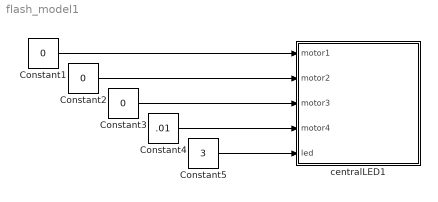
== matlab function flash_model1/centralLED1 ==
function motorController(motor1,motor2,motor3,motor4,led)
%#codegen

persistent flag

coder.cinclude('/Users/aodell/Documents/MATLAB/test_sim/mycfiles/mot.h');
coder.cinclude('/Users/aodell/Documents/MATLAB/test_sim/mycfiles/motorboard.h');
coder.cinclude('/Users/aodell/Documents/MATLAB/test_sim/mycfiles/util.h');
coder.cinclude('/Users/aodell/Documents/MATLAB/test_sim/mycfiles/gpio.h');

switch coder.target

    % Define how the block behaves in simulation mode 
    case 'sfun' 

    % Define how the block behaves in real time execution 
    case 'rtw'
        
        if isempty(flag),
            coder.ceval('mot_Init');
            flag=1;
        end;
        
        motorArr= double([motor1,motor2,motor3,motor4]);
        coder.ceval('mot_Run',motorArr(1),motorArr(2),motorArr(3),motorArr(4));
        coder.ceval('mot_SetLeds',led,led,led,led);
        
end

/*
 * flash_model1.cpp
 *
 * Code generation for model "flash_model1".
 *
 * Model version              : 1.38
 * Simulink Coder version : 8.7 (R2014b) 08-Sep-2014
 * C++ source code generated on : Sat Nov 22 21:27:00 2014
 *
 * Target selection: grt.tlc
 * Note: GRT includes extra infrastructure and instrumentation for prototyping
 * Embedded hardware selection: 32-bit Generic
 * Code generation objectives: Unspecified
 * Validation result: Not run
 */
#include "flash_model1.h"
#include "flash_model1_private.h"
#include "flash_model1_dt.h"

/* Block states (auto storage) */
DW_flash_model1_T flash_model1_DW;

/* Real-time model */
RT_MODEL_flash_model1_T flash_model1_M_;
RT_MODEL_flash_model1_T *const flash_model1_M = &flash_model1_M_;

/* Model step function */
void flash_model1_step(void)
{
  /* MATLAB Function: '<Root>/centralLED1' incorporates:
   *  Constant: '<Root>/Constant1'
   *  Constant: '<Root>/Constant2'
   *  Constant: '<Root>/Constant3'
   *  Constant: '<Root>/Constant4'
   *  Constant: '<Root>/Constant5'
   */
  /* MATLAB Function 'centralLED1': '<S1>:1' */
  if (!flash_model1_DW.flag_not_empty) {
    /* '<S1>:1:19' */
    mot_Init();
    flash_model1_DW.flag_not_empty = true;
  }

  /* '<S1>:1:24' */
  mot_Run(flash_model1_P.Constant1_Value, flash_model1_P.Constant2_Value,
          flash_model1_P.Constant3_Value, flash_model1_P.Constant4_Value);
  mot_SetLeds(flash_model1_P.Constant5_Value, flash_model1_P.Constant5_Value,
              flash_model1_P.Constant5_Value, flash_model1_P.Constant5_Value);

  /* End of MATLAB Function: '<Root>/centralLED1' */

  /* External mode */
  rtExtModeUploadCheckTrigger(1);

  {                                    /* Sample time: [0.1s, 0.0s] */
    rtExtModeUpload(0, flash_model1_M->Timing.taskTime0);
  }

  /* signal main to stop simulation */
  {                                    /* Sample time: [0.1s, 0.0s] */
    if ((rtmGetTFinal(flash_model1_M)!=-1) &&
        !((rtmGetTFinal(flash_model1_M)-flash_model1_M->Timing.taskTime0) >
          flash_model1_M->Timing.taskTime0 * (DBL_EPSILON))) {
      rtmSetErrorStatus(flash_model1_M, "Simulation finished");
    }

    if (rtmGetStopRequested(flash_model1_M)) {
      rtmSetErrorStatus(flash_model1_M, "Simulation finished");
    }
  }

  /* Update absolute time for base rate */
  /* The "clockTick0" counts the number of times the code of this task has
   * been executed. The absolute time is the multiplication of "clockTick0"
   * and "Timing.stepSize0". Size of "clockTick0" ensures timer will not
   * overflow during the application lifespan selected.
   * Timer of this task consists of two 32 bit unsigned integers.
   * The two integers represent the low bits Timing.clockTick0 and the high bits
   * Timing.clockTickH0. When the low bit overflows to 0, the high bits increment.
   */
  if (!(++flash_model1_M->Timing.clockTick0)) {
    ++flash_model1_M->Timing.clockTickH0;
  }

  flash_model1_M->Timing.taskTime0 = flash_model1_M->Timing.clockTick0 *
    flash_model1_M->Timing.stepSize0 + flash_model1_M->Timing.clockTickH0 *
    flash_model1_M->Timing.stepSize0 * 4294967296.0;
}
